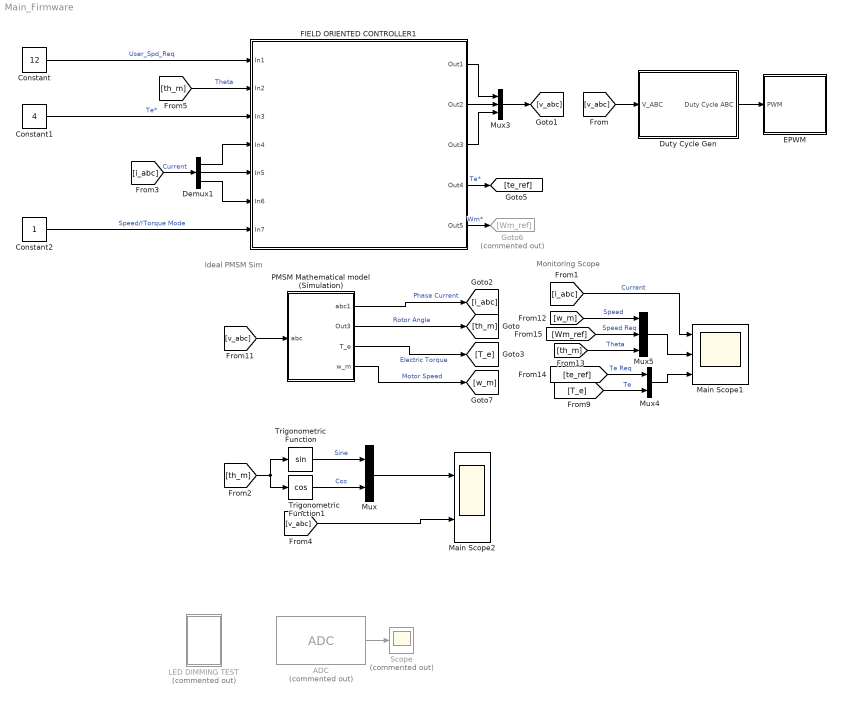
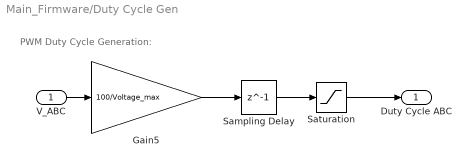
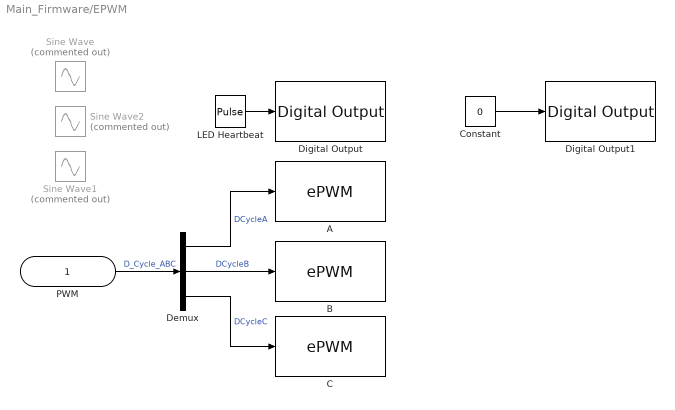
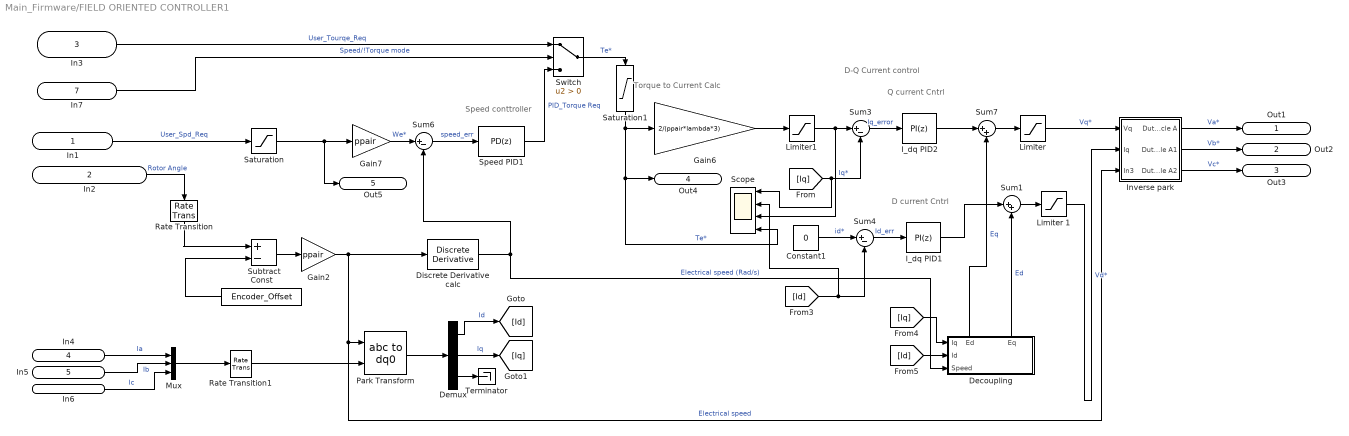
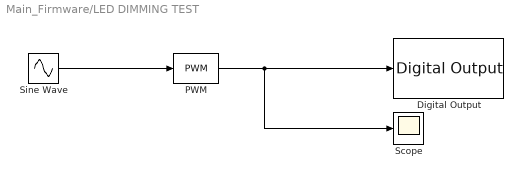
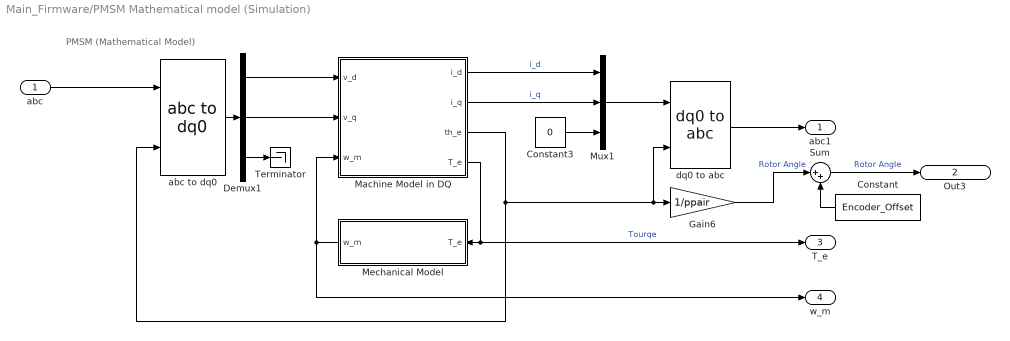
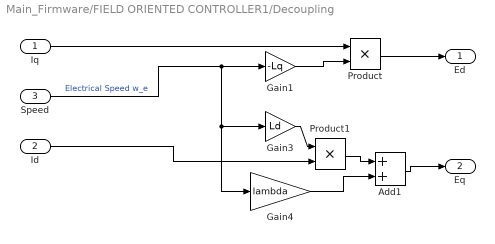
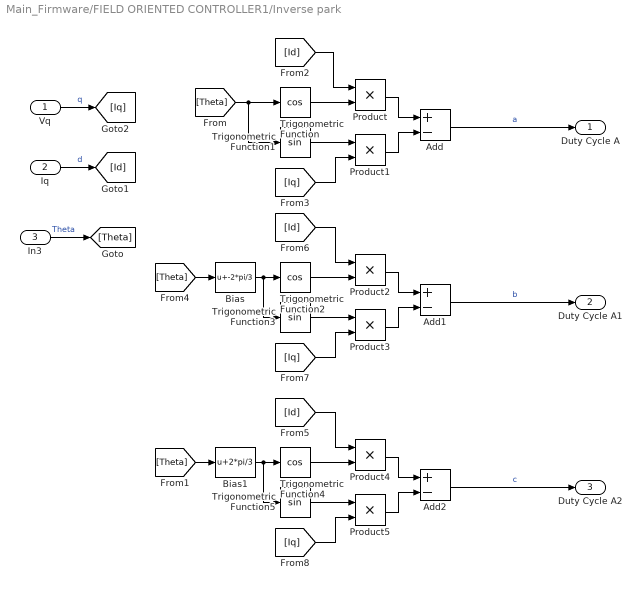
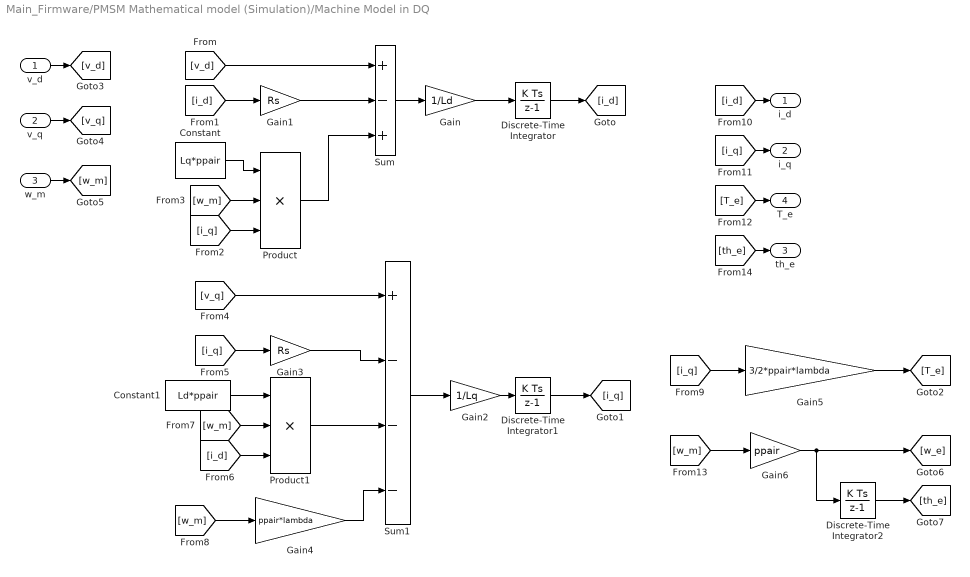
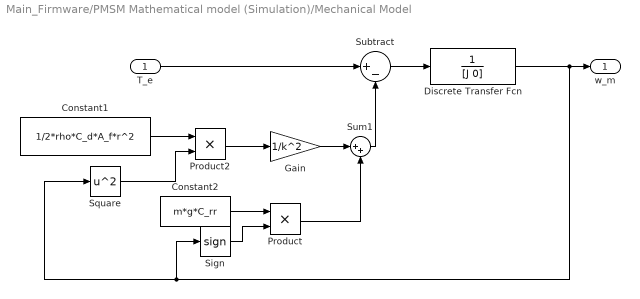
/*
 * Sponsored License - for use in support of a program or activity
 * sponsored by MathWorks.  Not for government, commercial or other
 * non-sponsored organizational use.
 *
 * File: Main_Firmware.c
 *
 * Code generated for Simulink model 'Main_Firmware'.
 *
 * Model version                  : 2.8
 * Simulink Coder version         : 24.2 (R2024b) 21-Jun-2024
 * C/C++ source code generated on : Mon May  5 13:40:06 2025
 *
 * Target selection: ert.tlc
 * Embedded hardware selection: Texas Instruments->C2000
 * Code generation objectives: Unspecified
 * Validation result: Not run
 */

#include "Main_Firmware.h"
#include "rtwtypes.h"
#include "Main_Firmware_private.h"
#include <math.h>
#include "rt_nonfinite.h"
#include <string.h>

/* Block signals (default storage) */
B_Main_Firmware_T Main_Firmware_B;

/* Block states (default storage) */
DW_Main_Firmware_T Main_Firmware_DW;

/* Real-time model */
static RT_MODEL_Main_Firmware_T Main_Firmware_M_;
RT_MODEL_Main_Firmware_T *const Main_Firmware_M = &Main_Firmware_M_;

/*
 * System initialize for enable system:
 *    '<S116>/Subsystem - pi//2 delay'
 *    '<S178>/Subsystem - pi//2 delay'
 */
void Main_Fir_Subsystempi2delay_Init(real_T *rty_dq, real_T *rty_dq_f,
  P_Subsystempi2delay_Main_Firm_T *localP)
{
  /* SystemInitialize for Outport: '<S120>/dq' */
  *rty_dq = localP->dq_Y0[0];
  *rty_dq_f = localP->dq_Y0[1];
}

/*
 * Output and update for enable system:
 *    '<S116>/Subsystem - pi//2 delay'
 *    '<S178>/Subsystem - pi//2 delay'
 */
void Main_Firmware_Subsystempi2delay(uint16_T rtu_Enable, const real_T
  rtu_alpha_beta[2], real_T rtu_wt, real_T *rty_dq, real_T *rty_dq_f,
  DW_Subsystempi2delay_Main_Fir_T *localDW)
{
  real_T tmp;
  real_T tmp_0;

  /* Outputs for Enabled SubSystem: '<S116>/Subsystem - pi//2 delay' incorporates:
   *  EnablePort: '<S120>/Enable'
   */
  if (rtu_Enable > 0U) {
    /* Fcn: '<S120>/Fcn' incorporates:
     *  Fcn: '<S120>/Fcn1'
     */
    tmp = cos(rtu_wt);
    tmp_0 = sin(rtu_wt);
    *rty_dq = rtu_alpha_beta[0] * tmp_0 - rtu_alpha_beta[1] * tmp;

    /* Fcn: '<S120>/Fcn1' */
    *rty_dq_f = rtu_alpha_beta[0] * tmp + rtu_alpha_beta[1] * tmp_0;
    srUpdateBC(localDW->Subsystempi2delay_SubsysRanBC);
  }

  /* End of Outputs for SubSystem: '<S116>/Subsystem - pi//2 delay' */
}

/*
 * System initialize for enable system:
 *    '<S116>/Subsystem1'
 *    '<S178>/Subsystem1'
 */
void Main_Firmware_Subsystem1_Init(real_T *rty_dq, real_T *rty_dq_e,
  P_Subsystem1_Main_Firmware_T *localP)
{
  /* SystemInitialize for Outport: '<S121>/dq' */
  *rty_dq = localP->dq_Y0[0];
  *rty_dq_e = localP->dq_Y0[1];
}

/*
 * Output and update for enable system:
 *    '<S116>/Subsystem1'
 *    '<S178>/Subsystem1'
 */
void Main_Firmware_Subsystem1(uint16_T rtu_Enable, const real_T rtu_alpha_beta[2],
  real_T rtu_wt, real_T *rty_dq, real_T *rty_dq_e, DW_Subsystem1_Main_Firmware_T
  *localDW)
{
  real_T tmp;
  real_T tmp_0;

  /* Outputs for Enabled SubSystem: '<S116>/Subsystem1' incorporates:
   *  EnablePort: '<S121>/Enable'
   */
  if (rtu_Enable > 0U) {
    /* Fcn: '<S121>/Fcn' incorporates:
     *  Fcn: '<S121>/Fcn1'
     */
    tmp = sin(rtu_wt);
    tmp_0 = cos(rtu_wt);
    *rty_dq = rtu_alpha_beta[0] * tmp_0 + rtu_alpha_beta[1] * tmp;

    /* Fcn: '<S121>/Fcn1' */
    *rty_dq_e = -rtu_alpha_beta[0] * tmp + rtu_alpha_beta[1] * tmp_0;
    srUpdateBC(localDW->Subsystem1_SubsysRanBC);
  }

  /* End of Outputs for SubSystem: '<S116>/Subsystem1' */
}

/* Model step function */
void Main_Firmware_step(void)
{
  real_T rtb_Gain3[3];
  real_T Iq_tmp;
  real_T rtb_Electricalspeed;
  real_T rtb_Filter;
  real_T rtb_FilterCoefficient;
  real_T rtb_Gain4_f;
  real_T rtb_Iq_error;
  real_T rtb_Product1_b;
  real_T rtb_Sum1_m;
  real_T rtb_TSamp;
  int16_T rtb_Compare;

  /* Reset subsysRan breadcrumbs */
  srClearBC(Main_Firmware_DW.Subsystempi2delay.Subsystempi2delay_SubsysRanBC);

  /* Reset subsysRan breadcrumbs */
  srClearBC(Main_Firmware_DW.Subsystem1.Subsystem1_SubsysRanBC);

  /* Reset subsysRan breadcrumbs */
  srClearBC(Main_Firmware_DW.Subsystempi2delay_SubsysRanBC);

  /* Reset subsysRan breadcrumbs */
  srClearBC(Main_Firmware_DW.Subsystem1_SubsysRanBC);

  /* Saturate: '<S1>/Saturation' incorporates:
   *  Delay: '<S1>/Sampling Delay'
   */
  if (Main_Firmware_DW.SamplingDelay_DSTATE[0] >
      Main_Firmware_P.Saturation_UpperSat) {
    rtb_Gain3[0] = Main_Firmware_P.Saturation_UpperSat;
  } else if (Main_Firmware_DW.SamplingDelay_DSTATE[0] <
             Main_Firmware_P.Saturation_LowerSat) {
    rtb_Gain3[0] = Main_Firmware_P.Saturation_LowerSat;
  } else {
    rtb_Gain3[0] = Main_Firmware_DW.SamplingDelay_DSTATE[0];
  }

  if (Main_Firmware_DW.SamplingDelay_DSTATE[1] >
      Main_Firmware_P.Saturation_UpperSat) {
    rtb_Gain3[1] = Main_Firmware_P.Saturation_UpperSat;
  } else if (Main_Firmware_DW.SamplingDelay_DSTATE[1] <
             Main_Firmware_P.Saturation_LowerSat) {
    rtb_Gain3[1] = Main_Firmware_P.Saturation_LowerSat;
  } else {
    rtb_Gain3[1] = Main_Firmware_DW.SamplingDelay_DSTATE[1];
  }

  if (Main_Firmware_DW.SamplingDelay_DSTATE[2] >
      Main_Firmware_P.Saturation_UpperSat) {
    rtb_Gain3[2] = Main_Firmware_P.Saturation_UpperSat;
  } else if (Main_Firmware_DW.SamplingDelay_DSTATE[2] <
             Main_Firmware_P.Saturation_LowerSat) {
    rtb_Gain3[2] = Main_Firmware_P.Saturation_LowerSat;
  } else {
    rtb_Gain3[2] = Main_Firmware_DW.SamplingDelay_DSTATE[2];
  }

  /* End of Saturate: '<S1>/Saturation' */

  /* S-Function (c2802xpwm): '<S2>/A' */
  uint16_T tbprdValue1Outputs = (EPwm1Regs.TBPRD + 1);

  /*-- Update CMPA value for ePWM1 --*/
  {
    EPwm1Regs.CMPA.bit.CMPA = (uint16_T)((uint32_T)(EPwm1Regs.TBPRD + 1) *
      rtb_Gain3[0] * 0.01);
  }

  /* S-Function (c2802xpwm): '<S2>/B' */
  uint16_T tbprdValue4Outputs = (EPwm4Regs.TBPRD + 1);

  /*-- Update CMPA value for ePWM4 --*/
  {
    EPwm4Regs.CMPA.bit.CMPA = (uint16_T)((uint32_T)(EPwm4Regs.TBPRD + 1) *
      rtb_Gain3[1] * 0.01);
  }

  /* S-Function (c2802xpwm): '<S2>/C' */
  uint16_T tbprdValue2Outputs = (EPwm2Regs.TBPRD + 1);

  /*-- Update CMPA value for ePWM2 --*/
  {
    EPwm2Regs.CMPA.bit.CMPA = (uint16_T)((uint32_T)(EPwm2Regs.TBPRD + 1) *
      rtb_Gain3[2] * 0.01);
  }

  /* S-Function (c280xgpio_do): '<S2>/Digital Output1' incorporates:
   *  Constant: '<S2>/Constant'
   */
  {
    if (Main_Firmware_P.Constant_Value) {
      GpioDataRegs.GPASET.bit.GPIO31 = 1U;
    } else {
      GpioDataRegs.GPACLEAR.bit.GPIO31 = 1U;
    }
  }

  /* Sum: '<S175>/Subtract' incorporates:
   *  DiscretePulseGenerator: '<S2>/LED Heartbeat'
   */
  Main_Firmware_B.Subtract = (Main_Firmware_DW.clockTickCounter <
    Main_Firmware_P.LEDHeartbeat_Duty) && (Main_Firmware_DW.clockTickCounter >=
    0L) ? Main_Firmware_P.LEDHeartbeat_Amp : 0.0;

  /* DiscretePulseGenerator: '<S2>/LED Heartbeat' */
  if (Main_Firmware_DW.clockTickCounter >= Main_Firmware_P.LEDHeartbeat_Period -
      1.0) {
    Main_Firmware_DW.clockTickCounter = 0L;
  } else {
    Main_Firmware_DW.clockTickCounter++;
  }

  /* S-Function (c280xgpio_do): '<S2>/Digital Output' */
  {
    if (Main_Firmware_B.Subtract) {
      GpioDataRegs.GPASET.bit.GPIO23 = 1U;
    } else {
      GpioDataRegs.GPACLEAR.bit.GPIO23 = 1U;
    }
  }

  /* DiscreteTransferFcn: '<S175>/Discrete Transfer Fcn' */
  Main_Firmware_B.DiscreteTransferFcn =
    Main_Firmware_P.DiscreteTransferFcn_NumCoef *
    Main_Firmware_DW.DiscreteTransferFcn_states;

  /* Sum: '<S4>/Sum' incorporates:
   *  Constant: '<S4>/Constant'
   *  DiscreteIntegrator: '<S174>/Discrete-Time Integrator2'
   *  Gain: '<S4>/Gain6'
   */
  Main_Firmware_B.RotorAngle = 1.0 / Main_Firmware_P.ppair *
    Main_Firmware_DW.DiscreteTimeIntegrator2_DSTATE +
    Main_Firmware_P.Encoder_Offset;

  /* SignalConversion generated from: '<Root>/Mux5' */
  Main_Firmware_B.TmpSignalConversionAtTAQSigLogg[0] =
    Main_Firmware_B.DiscreteTransferFcn;
  Main_Firmware_B.TmpSignalConversionAtTAQSigLogg[1] = 0.0;
  Main_Firmware_B.TmpSignalConversionAtTAQSigLogg[2] =
    Main_Firmware_B.RotorAngle;

  /* RelationalOperator: '<S186>/Compare' incorporates:
   *  Constant: '<S185>/Constant'
   *  Constant: '<S186>/Constant'
   */
  rtb_Compare = (Main_Firmware_P.dq0toAlphaBetaZero_Alignment ==
                 Main_Firmware_P.CompareToConstant_const);

  /* Outputs for Enabled SubSystem: '<S185>/Subsystem1' incorporates:
   *  EnablePort: '<S189>/Enable'
   */
  /* RelationalOperator: '<S186>/Compare' */
  if (rtb_Compare > 0) {
    /* Fcn: '<S189>/Fcn' incorporates:
     *  DiscreteIntegrator: '<S174>/Discrete-Time Integrator2'
     *  Fcn: '<S189>/Fcn1'
     */
    rtb_TSamp = sin(Main_Firmware_DW.DiscreteTimeIntegrator2_DSTATE);
    rtb_FilterCoefficient = cos(Main_Firmware_DW.DiscreteTimeIntegrator2_DSTATE);

    /* Fcn: '<S189>/Fcn' incorporates:
     *  DiscreteIntegrator: '<S174>/Discrete-Time Integrator'
     *  DiscreteIntegrator: '<S174>/Discrete-Time Integrator1'
     */
    Main_Firmware_B.Fcn = Main_Firmware_DW.DiscreteTimeIntegrator_DSTATE *
      rtb_FilterCoefficient - Main_Firmware_DW.DiscreteTimeIntegrator1_DSTATE *
      rtb_TSamp;

    /* Fcn: '<S189>/Fcn1' incorporates:
     *  DiscreteIntegrator: '<S174>/Discrete-Time Integrator'
     *  DiscreteIntegrator: '<S174>/Discrete-Time Integrator1'
     */
    Main_Firmware_B.Fcn1 = Main_Firmware_DW.DiscreteTimeIntegrator_DSTATE *
      rtb_TSamp + Main_Firmware_DW.DiscreteTimeIntegrator1_DSTATE *
      rtb_FilterCoefficient;
    srUpdateBC(Main_Firmware_DW.Subsystem1_SubsysRanBC);
  }

  /* End of Outputs for SubSystem: '<S185>/Subsystem1' */

  /* Outputs for Enabled SubSystem: '<S185>/Subsystem - pi//2 delay' incorporates:
   *  EnablePort: '<S188>/Enable'
   */
  /* RelationalOperator: '<S187>/Compare' incorporates:
   *  Constant: '<S185>/Constant'
   *  Constant: '<S187>/Constant'
   */
  if (Main_Firmware_P.dq0toAlphaBetaZero_Alignment ==
      Main_Firmware_P.CompareToConstant1_const) {
    /* Fcn: '<S188>/Fcn' incorporates:
     *  DiscreteIntegrator: '<S174>/Discrete-Time Integrator2'
     *  Fcn: '<S188>/Fcn1'
     */
    rtb_TSamp = cos(Main_Firmware_DW.DiscreteTimeIntegrator2_DSTATE);

    /* Fcn: '<S188>/Fcn' incorporates:
     *  DiscreteIntegrator: '<S174>/Discrete-Time Integrator'
     *  DiscreteIntegrator: '<S174>/Discrete-Time Integrator1'
     *  DiscreteIntegrator: '<S174>/Discrete-Time Integrator2'
     */
    Main_Firmware_B.Fcn_l = Main_Firmware_DW.DiscreteTimeIntegrator_DSTATE * sin
      (Main_Firmware_DW.DiscreteTimeIntegrator2_DSTATE) +
      Main_Firmware_DW.DiscreteTimeIntegrator1_DSTATE * rtb_TSamp;

    /* Fcn: '<S188>/Fcn1' incorporates:
     *  DiscreteIntegrator: '<S174>/Discrete-Time Integrator'
     *  DiscreteIntegrator: '<S174>/Discrete-Time Integrator1'
     *  DiscreteIntegrator: '<S174>/Discrete-Time Integrator2'
     */
    Main_Firmware_B.Fcn1_a = -Main_Firmware_DW.DiscreteTimeIntegrator_DSTATE *
      rtb_TSamp + Main_Firmware_DW.DiscreteTimeIntegrator1_DSTATE * sin
      (Main_Firmware_DW.DiscreteTimeIntegrator2_DSTATE);
    srUpdateBC(Main_Firmware_DW.Subsystempi2delay_SubsysRanBC);
  }

  /* End of RelationalOperator: '<S187>/Compare' */
  /* End of Outputs for SubSystem: '<S185>/Subsystem - pi//2 delay' */

  /* Switch: '<S185>/Switch' incorporates:
   *  RelationalOperator: '<S186>/Compare'
   */
  if (rtb_Compare != 0) {
    /* SignalConversion generated from: '<S184>/Gain3' */
    rtb_Gain3[0] = Main_Firmware_B.Fcn;
    rtb_Gain3[1] = Main_Firmware_B.Fcn1;
  } else {
    /* SignalConversion generated from: '<S184>/Gain3' */
    rtb_Gain3[0] = Main_Firmware_B.Fcn_l;
    rtb_Gain3[1] = Main_Firmware_B.Fcn1_a;
  }

  /* End of Switch: '<S185>/Switch' */

  /* SignalConversion generated from: '<S184>/Gain3' incorporates:
   *  Constant: '<S4>/Constant3'
   */
  rtb_Gain3[2] = Main_Firmware_P.Constant3_Value;

  /* Gain: '<S184>/Gain3' */
  rtb_TSamp = rtb_Gain3[1];
  rtb_FilterCoefficient = rtb_Gain3[0];
  rtb_Filter = rtb_Gain3[2];
  for (rtb_Compare = 0; rtb_Compare < 3; rtb_Compare++) {
    /* Gain: '<S184>/Gain3' */
    Main_Firmware_B.Gain3[rtb_Compare] = (Main_Firmware_P.Gain3_Gain[rtb_Compare
      + 3] * rtb_TSamp + Main_Firmware_P.Gain3_Gain[rtb_Compare] *
      rtb_FilterCoefficient) + Main_Firmware_P.Gain3_Gain[rtb_Compare + 6] *
      rtb_Filter;
  }

  /* Gain: '<S3>/Gain2' incorporates:
   *  Constant: '<S3>/Const'
   *  Sum: '<S3>/Subtract'
   */
  rtb_Electricalspeed = (Main_Firmware_B.RotorAngle -
    Main_Firmware_P.Encoder_Offset) * Main_Firmware_P.ppair;

  /* SampleTimeMath: '<S6>/TSamp'
   *
   * About '<S6>/TSamp':
   *  y = u * K where K = 1 / ( w * Ts )
   *   */
  rtb_TSamp = rtb_Electricalspeed * Main_Firmware_P.TSamp_WtEt;

  /* Sum: '<S6>/Diff' incorporates:
   *  UnitDelay: '<S6>/UD'
   *
   * Block description for '<S6>/Diff':
   *
   *  Add in CPU
   *
   * Block description for '<S6>/UD':
   *
   *  Store in Global RAM
   */
  rtb_Gain4_f = rtb_TSamp - Main_Firmware_DW.UD_DSTATE;

  /* Saturate: '<S3>/Saturation' incorporates:
   *  Constant: '<Root>/Constant'
   */
  if (Main_Firmware_P.Constant_Value_d > Main_Firmware_P.speed_max) {
    rtb_Product1_b = Main_Firmware_P.speed_max;
  } else if (Main_Firmware_P.Constant_Value_d < -Main_Firmware_P.speed_max) {
    rtb_Product1_b = -Main_Firmware_P.speed_max;
  } else {
    rtb_Product1_b = Main_Firmware_P.Constant_Value_d;
  }

  /* Sum: '<S3>/Sum6' incorporates:
   *  Gain: '<S3>/Gain7'
   *  Saturate: '<S3>/Saturation'
   */
  rtb_Filter = Main_Firmware_P.ppair * rtb_Product1_b - rtb_Gain4_f;

  /* Gain: '<S159>/Filter Coefficient' incorporates:
   *  DiscreteIntegrator: '<S151>/Filter'
   *  Gain: '<S149>/Derivative Gain'
   *  Sum: '<S151>/SumD'
   */
  rtb_FilterCoefficient = (Main_Firmware_P.SpeedPID1_D * rtb_Filter -
    Main_Firmware_DW.Filter_DSTATE) * Main_Firmware_P.SpeedPID1_N;

  /* Switch: '<S3>/Switch' incorporates:
   *  Constant: '<Root>/Constant2'
   */
  if (Main_Firmware_P.Constant2_Value > Main_Firmware_P.Switch_Threshold) {
    /* Sum: '<S165>/Sum' incorporates:
     *  Constant: '<Root>/Constant1'
     */
    Main_Firmware_B.Te = Main_Firmware_P.Constant1_Value;
  } else {
    /* Sum: '<S165>/Sum' incorporates:
     *  Gain: '<S161>/Proportional Gain'
     */
    Main_Firmware_B.Te = Main_Firmware_P.SpeedPID1_P * rtb_Filter +
      rtb_FilterCoefficient;

    /* Saturate: '<S163>/Saturation' */
    if (Main_Firmware_B.Te > Main_Firmware_P.Torque_max) {
      /* Sum: '<S165>/Sum' */
      Main_Firmware_B.Te = Main_Firmware_P.Torque_max;
    } else if (Main_Firmware_B.Te < -Main_Firmware_P.Torque_max) {
      /* Sum: '<S165>/Sum' */
      Main_Firmware_B.Te = -Main_Firmware_P.Torque_max;
    }

    /* End of Saturate: '<S163>/Saturation' */
  }

  /* End of Switch: '<S3>/Switch' */

  /* Saturate: '<S3>/Saturation1' */
  if (Main_Firmware_B.Te > Main_Firmware_P.Torque_max) {
    /* Sum: '<S165>/Sum' incorporates:
     *  Saturate: '<S3>/Saturation1'
     */
    Main_Firmware_B.Te = Main_Firmware_P.Torque_max;
  } else if (Main_Firmware_B.Te < -Main_Firmware_P.Torque_max) {
    /* Sum: '<S165>/Sum' incorporates:
     *  Saturate: '<S3>/Saturation1'
     */
    Main_Firmware_B.Te = -Main_Firmware_P.Torque_max;
  }

  /* End of Saturate: '<S3>/Saturation1' */

  /* Gain: '<S174>/Gain5' incorporates:
   *  DiscreteIntegrator: '<S174>/Discrete-Time Integrator1'
   */
  Main_Firmware_B.Gain5 = 1.5 * Main_Firmware_P.ppair * Main_Firmware_P.lambda *
    Main_Firmware_DW.DiscreteTimeIntegrator1_DSTATE;

  /* SignalConversion generated from: '<Root>/Mux4' */
  Main_Firmware_B.TmpSignalConversionAtTAQSigLo_m[0] = Main_Firmware_B.Te;
  Main_Firmware_B.TmpSignalConversionAtTAQSigLo_m[1] = Main_Firmware_B.Gain5;

  /* Gain: '<S117>/Gain3' */
  rtb_Filter = Main_Firmware_B.Gain3[1];
  rtb_Iq_error = Main_Firmware_B.Gain3[0];
  rtb_Sum1_m = Main_Firmware_B.Gain3[2];
  for (rtb_Compare = 0; rtb_Compare < 3; rtb_Compare++) {
    /* Gain: '<S117>/Gain1' incorporates:
     *  Gain: '<S117>/Gain3'
     */
    Main_Firmware_B.Gain1[rtb_Compare] =
      ((Main_Firmware_P.Gain3_Gain_k[rtb_Compare + 3] * rtb_Filter +
        Main_Firmware_P.Gain3_Gain_k[rtb_Compare] * rtb_Iq_error) +
       Main_Firmware_P.Gain3_Gain_k[rtb_Compare + 6] * rtb_Sum1_m) *
      Main_Firmware_P.Gain1_Gain;
  }

  /* End of Gain: '<S117>/Gain3' */

  /* RelationalOperator: '<S118>/Compare' incorporates:
   *  Constant: '<S116>/Constant'
   *  Constant: '<S118>/Constant'
   */
  rtb_Compare = (Main_Firmware_P.AlphaBetaZerotodq0_Alignment ==
                 Main_Firmware_P.CompareToConstant_const_o);

  /* Outputs for Enabled SubSystem: '<S116>/Subsystem1' */
  /* Gain: '<S117>/Gain1' */
  Main_Firmware_Subsystem1((uint16_T)rtb_Compare, &Main_Firmware_B.Gain1[0],
    rtb_Electricalspeed, &Main_Firmware_B.Fcn_k, &Main_Firmware_B.Fcn1_n,
    &Main_Firmware_DW.Subsystem1);

  /* End of Outputs for SubSystem: '<S116>/Subsystem1' */

  /* Outputs for Enabled SubSystem: '<S116>/Subsystem - pi//2 delay' */
  /* RelationalOperator: '<S119>/Compare' incorporates:
   *  Constant: '<S116>/Constant'
   *  Constant: '<S119>/Constant'
   *  Gain: '<S117>/Gain1'
   */
  Main_Firmware_Subsystempi2delay((uint16_T)
    (Main_Firmware_P.AlphaBetaZerotodq0_Alignment ==
     Main_Firmware_P.CompareToConstant1_const_k), &Main_Firmware_B.Gain1[0],
    rtb_Electricalspeed, &Main_Firmware_B.Fcn_j, &Main_Firmware_B.Fcn1_e,
    &Main_Firmware_DW.Subsystempi2delay);

  /* End of Outputs for SubSystem: '<S116>/Subsystem - pi//2 delay' */

  /* Switch: '<S116>/Switch' incorporates:
   *  RelationalOperator: '<S118>/Compare'
   */
  if (rtb_Compare != 0) {
    /* Switch: '<S116>/Switch' */
    Main_Firmware_B.Switch[0] = Main_Firmware_B.Fcn_k;
    Main_Firmware_B.Switch[1] = Main_Firmware_B.Fcn1_n;
  } else {
    /* Switch: '<S116>/Switch' */
    Main_Firmware_B.Switch[0] = Main_Firmware_B.Fcn_j;
    Main_Firmware_B.Switch[1] = Main_Firmware_B.Fcn1_e;
  }

  /* End of Switch: '<S116>/Switch' */

  /* SignalConversion generated from: '<S3>/Park Transform' */
  Main_Firmware_B.TmpSignalConversionAtTAQSigLo_j[0] = Main_Firmware_B.Switch[0];
  Main_Firmware_B.TmpSignalConversionAtTAQSigLo_j[1] = Main_Firmware_B.Switch[1];
  Main_Firmware_B.TmpSignalConversionAtTAQSigLo_j[2] = Main_Firmware_B.Gain1[2];

  /* Sum: '<S3>/Sum4' incorporates:
   *  Constant: '<S3>/Constant1'
   */
  rtb_Filter = Main_Firmware_P.Constant1_Value_n - Main_Firmware_B.Switch[0];

  /* Sum: '<S55>/Sum' incorporates:
   *  DiscreteIntegrator: '<S46>/Integrator'
   *  Gain: '<S51>/Proportional Gain'
   */
  rtb_Sum1_m = Main_Firmware_P.I_dqPID1_P * rtb_Filter +
    Main_Firmware_DW.Integrator_DSTATE;

  /* Saturate: '<S53>/Saturation' */
  if (rtb_Sum1_m > Main_Firmware_P.Voltage_max) {
    rtb_Sum1_m = Main_Firmware_P.Voltage_max;
  } else if (rtb_Sum1_m < -Main_Firmware_P.Voltage_max) {
    rtb_Sum1_m = -Main_Firmware_P.Voltage_max;
  }

  /* Sum: '<S3>/Sum1' incorporates:
   *  Gain: '<S5>/Gain3'
   *  Gain: '<S5>/Gain4'
   *  Product: '<S5>/Product1'
   *  Saturate: '<S53>/Saturation'
   *  Sum: '<S5>/Add1'
   */
  rtb_Product1_b = (Main_Firmware_P.Ld * rtb_Gain4_f * Main_Firmware_B.Switch[0]
                    + Main_Firmware_P.lambda * rtb_Gain4_f) + rtb_Sum1_m;

  /* Saturate: '<S3>/Limiter 1' */
  if (rtb_Product1_b > Main_Firmware_P.Voltage_max) {
    rtb_Product1_b = Main_Firmware_P.Voltage_max;
  } else if (rtb_Product1_b < Main_Firmware_P.Limiter1_LowerSat) {
    rtb_Product1_b = Main_Firmware_P.Limiter1_LowerSat;
  }

  /* End of Saturate: '<S3>/Limiter 1' */

  /* Gain: '<S3>/Gain6' incorporates:
   *  Gain: '<S174>/Gain4'
   */
  Iq_tmp = Main_Firmware_P.ppair * Main_Firmware_P.lambda;
  Main_Firmware_B.Iq = 2.0 / (Iq_tmp * 3.0) * Main_Firmware_B.Te;

  /* Saturate: '<S3>/Limiter1' */
  if (Main_Firmware_B.Iq > Main_Firmware_P.Current_max) {
    /* Gain: '<S3>/Gain6' incorporates:
     *  Saturate: '<S3>/Limiter1'
     */
    Main_Firmware_B.Iq = Main_Firmware_P.Current_max;
  } else if (Main_Firmware_B.Iq < -Main_Firmware_P.Current_max) {
    /* Gain: '<S3>/Gain6' incorporates:
     *  Saturate: '<S3>/Limiter1'
     */
    Main_Firmware_B.Iq = -Main_Firmware_P.Current_max;
  }

  /* End of Saturate: '<S3>/Limiter1' */

  /* Sum: '<S3>/Sum3' */
  rtb_Iq_error = Main_Firmware_B.Iq - Main_Firmware_B.Switch[1];

  /* Sum: '<S107>/Sum' incorporates:
   *  DiscreteIntegrator: '<S98>/Integrator'
   *  Gain: '<S103>/Proportional Gain'
   */
  rtb_Sum1_m = Main_Firmware_P.I_dqPID2_P * rtb_Iq_error +
    Main_Firmware_DW.Integrator_DSTATE_o;

  /* Saturate: '<S105>/Saturation' */
  if (rtb_Sum1_m > Main_Firmware_P.Voltage_max) {
    rtb_Sum1_m = Main_Firmware_P.Voltage_max;
  } else if (rtb_Sum1_m < -Main_Firmware_P.Voltage_max) {
    rtb_Sum1_m = -Main_Firmware_P.Voltage_max;
  }

  /* Sum: '<S3>/Sum7' incorporates:
   *  Gain: '<S5>/Gain1'
   *  Product: '<S5>/Product'
   *  Saturate: '<S105>/Saturation'
   */
  rtb_Sum1_m += -Main_Firmware_P.Lq * rtb_Gain4_f * Main_Firmware_B.Switch[1];

  /* Saturate: '<S3>/Limiter' */
  if (rtb_Sum1_m > Main_Firmware_P.Voltage_max) {
    rtb_Sum1_m = Main_Firmware_P.Voltage_max;
  } else if (rtb_Sum1_m < Main_Firmware_P.Limiter_LowerSat) {
    rtb_Sum1_m = Main_Firmware_P.Limiter_LowerSat;
  }

  /* End of Saturate: '<S3>/Limiter' */

  /* Sum: '<S9>/Add' incorporates:
   *  Product: '<S9>/Product'
   *  Product: '<S9>/Product1'
   *  Trigonometry: '<S9>/Trigonometric Function'
   *  Trigonometry: '<S9>/Trigonometric Function1'
   */
  Main_Firmware_B.a = rtb_Product1_b * cos(rtb_Electricalspeed) - sin
    (rtb_Electricalspeed) * rtb_Sum1_m;

  /* Bias: '<S9>/Bias' */
  rtb_Gain4_f = rtb_Electricalspeed + Main_Firmware_P.Bias_Bias;

  /* Sum: '<S9>/Add1' incorporates:
   *  Product: '<S9>/Product2'
   *  Product: '<S9>/Product3'
   *  Trigonometry: '<S9>/Trigonometric Function2'
   *  Trigonometry: '<S9>/Trigonometric Function3'
   */
  Main_Firmware_B.b = rtb_Product1_b * cos(rtb_Gain4_f) - sin(rtb_Gain4_f) *
    rtb_Sum1_m;

  /* Bias: '<S9>/Bias1' */
  rtb_Gain4_f = rtb_Electricalspeed + Main_Firmware_P.Bias1_Bias;

  /* Sum: '<S9>/Add2' incorporates:
   *  Product: '<S9>/Product4'
   *  Product: '<S9>/Product5'
   *  Trigonometry: '<S9>/Trigonometric Function4'
   *  Trigonometry: '<S9>/Trigonometric Function5'
   */
  Main_Firmware_B.c = rtb_Product1_b * cos(rtb_Gain4_f) - sin(rtb_Gain4_f) *
    rtb_Sum1_m;

  /* SignalConversion generated from: '<S179>/Gain3' */
  Main_Firmware_B.TmpSignalConversionAtGain3Inpor[0] = Main_Firmware_B.a;
  Main_Firmware_B.TmpSignalConversionAtGain3Inpor[1] = Main_Firmware_B.b;
  Main_Firmware_B.TmpSignalConversionAtGain3Inpor[2] = Main_Firmware_B.c;

  /* Trigonometry: '<Root>/Trigonometric Function' */
  Main_Firmware_B.Sine = sin(Main_Firmware_B.RotorAngle);

  /* Trigonometry: '<Root>/Trigonometric Function1' */
  Main_Firmware_B.Cos = cos(Main_Firmware_B.RotorAngle);

  /* SignalConversion generated from: '<Root>/Mux' */
  Main_Firmware_B.TmpSignalConversionAtTAQSigLo_i[0] = Main_Firmware_B.Sine;
  Main_Firmware_B.TmpSignalConversionAtTAQSigLo_i[1] = Main_Firmware_B.Cos;

  /* Gain: '<S1>/Gain5' incorporates:
   *  Delay: '<S1>/Sampling Delay'
   */
  rtb_Product1_b = 100.0 / Main_Firmware_P.Voltage_max;
  for (rtb_Compare = 0; rtb_Compare < 3; rtb_Compare++) {
    Main_Firmware_DW.SamplingDelay_DSTATE[rtb_Compare] = rtb_Product1_b *
      Main_Firmware_B.TmpSignalConversionAtGain3Inpor[rtb_Compare];

    /* Gain: '<S179>/Gain1' incorporates:
     *  Delay: '<S1>/Sampling Delay'
     *  Gain: '<S179>/Gain3'
     */
    rtb_Gain3[rtb_Compare] = ((Main_Firmware_P.Gain3_Gain_k3[rtb_Compare + 3] *
      Main_Firmware_B.TmpSignalConversionAtGain3Inpor[1] +
      Main_Firmware_P.Gain3_Gain_k3[rtb_Compare] *
      Main_Firmware_B.TmpSignalConversionAtGain3Inpor[0]) +
      Main_Firmware_P.Gain3_Gain_k3[rtb_Compare + 6] *
      Main_Firmware_B.TmpSignalConversionAtGain3Inpor[2]) *
      Main_Firmware_P.Gain1_Gain_i;
  }

  /* End of Gain: '<S1>/Gain5' */
  /* RelationalOperator: '<S180>/Compare' incorporates:
   *  Constant: '<S178>/Constant'
   *  Constant: '<S180>/Constant'
   */
  rtb_Compare = (Main_Firmware_P.AlphaBetaZerotodq0_Alignment_e ==
                 Main_Firmware_P.CompareToConstant_const_n);

  /* Outputs for Enabled SubSystem: '<S178>/Subsystem1' */
  /* DiscreteIntegrator: '<S174>/Discrete-Time Integrator2' */
  Main_Firmware_Subsystem1((uint16_T)rtb_Compare, &rtb_Gain3[0],
    Main_Firmware_DW.DiscreteTimeIntegrator2_DSTATE, &Main_Firmware_B.Fcn_f,
    &Main_Firmware_B.Fcn1_j, &Main_Firmware_DW.Subsystem1_k);

  /* End of Outputs for SubSystem: '<S178>/Subsystem1' */

  /* Outputs for Enabled SubSystem: '<S178>/Subsystem - pi//2 delay' */
  /* RelationalOperator: '<S181>/Compare' incorporates:
   *  Constant: '<S178>/Constant'
   *  Constant: '<S181>/Constant'
   *  DiscreteIntegrator: '<S174>/Discrete-Time Integrator2'
   */
  Main_Firmware_Subsystempi2delay((uint16_T)
    (Main_Firmware_P.AlphaBetaZerotodq0_Alignment_e ==
     Main_Firmware_P.CompareToConstant1_const_n), &rtb_Gain3[0],
    Main_Firmware_DW.DiscreteTimeIntegrator2_DSTATE, &Main_Firmware_B.Fcn_m,
    &Main_Firmware_B.Fcn1_i, &Main_Firmware_DW.Subsystempi2delay_o);

  /* End of Outputs for SubSystem: '<S178>/Subsystem - pi//2 delay' */

  /* Switch: '<S178>/Switch' incorporates:
   *  RelationalOperator: '<S180>/Compare'
   */
  if (rtb_Compare != 0) {
    rtb_Electricalspeed = Main_Firmware_B.Fcn_f;
    rtb_Gain4_f = Main_Firmware_B.Fcn1_j;
  } else {
    rtb_Electricalspeed = Main_Firmware_B.Fcn_m;
    rtb_Gain4_f = Main_Firmware_B.Fcn1_i;
  }

  /* End of Switch: '<S178>/Switch' */
  /* Sum: '<S174>/Sum1' incorporates:
   *  Constant: '<S174>/Constant1'
   *  DiscreteIntegrator: '<S174>/Discrete-Time Integrator'
   *  DiscreteIntegrator: '<S174>/Discrete-Time Integrator1'
   *  Gain: '<S174>/Gain3'
   *  Gain: '<S174>/Gain4'
   *  Product: '<S174>/Product1'
   */
  rtb_Sum1_m = ((rtb_Gain4_f - Main_Firmware_P.Rs *
                 Main_Firmware_DW.DiscreteTimeIntegrator1_DSTATE) -
                Main_Firmware_P.Ld * Main_Firmware_P.ppair *
                Main_Firmware_B.DiscreteTransferFcn *
                Main_Firmware_DW.DiscreteTimeIntegrator_DSTATE) - Iq_tmp *
    Main_Firmware_B.DiscreteTransferFcn;

  /* Signum: '<S175>/Sign' */
  if (rtIsNaN(Main_Firmware_B.DiscreteTransferFcn)) {
    rtb_Product1_b = (rtNaN);
  } else if (Main_Firmware_B.DiscreteTransferFcn < 0.0) {
    rtb_Product1_b = -1.0;
  } else {
    rtb_Product1_b = (Main_Firmware_B.DiscreteTransferFcn > 0.0);
  }

  /* Sum: '<S175>/Subtract' incorporates:
   *  Constant: '<S175>/Constant1'
   *  Constant: '<S175>/Constant2'
   *  Gain: '<S175>/Gain'
   *  Math: '<S175>/Square'
   *  Product: '<S175>/Product'
   *  Product: '<S175>/Product2'
   *  Signum: '<S175>/Sign'
   *  Sum: '<S175>/Sum1'
   */
  Main_Firmware_B.Subtract = Main_Firmware_B.Gain5 - (0.5 * Main_Firmware_P.rho *
    Main_Firmware_P.C_d * Main_Firmware_P.A_f * 0.04129024 *
    (Main_Firmware_B.DiscreteTransferFcn * Main_Firmware_B.DiscreteTransferFcn) *
    Main_Firmware_P.Gain_Gain + Main_Firmware_P.m * Main_Firmware_P.g *
    Main_Firmware_P.C_rr * rtb_Product1_b);

  /* Update for DiscreteTransferFcn: '<S175>/Discrete Transfer Fcn' */
  Main_Firmware_DW.DiscreteTransferFcn_states = (Main_Firmware_B.Subtract -
    Main_Firmware_P.DiscreteTransferFcn_DenCoef[1L] *
    Main_Firmware_DW.DiscreteTransferFcn_states) /
    Main_Firmware_P.DiscreteTransferFcn_DenCoef[0];

  /* Update for DiscreteIntegrator: '<S174>/Discrete-Time Integrator2' incorporates:
   *  Gain: '<S174>/Gain6'
   */
  Main_Firmware_DW.DiscreteTimeIntegrator2_DSTATE += Main_Firmware_P.ppair *
    Main_Firmware_B.DiscreteTransferFcn *
    Main_Firmware_P.DiscreteTimeIntegrator2_gainval;

  /* Update for DiscreteIntegrator: '<S174>/Discrete-Time Integrator' incorporates:
   *  Constant: '<S174>/Constant'
   *  DiscreteIntegrator: '<S174>/Discrete-Time Integrator1'
   *  Gain: '<S174>/Gain'
   *  Gain: '<S174>/Gain1'
   *  Product: '<S174>/Product'
   *  Sum: '<S174>/Sum'
   */
  Main_Firmware_DW.DiscreteTimeIntegrator_DSTATE += (Main_Firmware_P.Lq *
    Main_Firmware_P.ppair * Main_Firmware_B.DiscreteTransferFcn *
    Main_Firmware_DW.DiscreteTimeIntegrator1_DSTATE + (rtb_Electricalspeed -
    Main_Firmware_P.Rs * Main_Firmware_DW.DiscreteTimeIntegrator_DSTATE)) * (1.0
    / Main_Firmware_P.Ld) * Main_Firmware_P.DiscreteTimeIntegrator_gainval;

  /* Update for DiscreteIntegrator: '<S174>/Discrete-Time Integrator1' incorporates:
   *  Gain: '<S174>/Gain2'
   */
  Main_Firmware_DW.DiscreteTimeIntegrator1_DSTATE += 1.0 / Main_Firmware_P.Lq *
    rtb_Sum1_m * Main_Firmware_P.DiscreteTimeIntegrator1_gainval;

  /* Update for UnitDelay: '<S6>/UD'
   *
   * Block description for '<S6>/UD':
   *
   *  Store in Global RAM
   */
  Main_Firmware_DW.UD_DSTATE = rtb_TSamp;

  /* Update for DiscreteIntegrator: '<S151>/Filter' */
  Main_Firmware_DW.Filter_DSTATE += Main_Firmware_P.Filter_gainval *
    rtb_FilterCoefficient;

  /* Update for DiscreteIntegrator: '<S46>/Integrator' incorporates:
   *  Gain: '<S43>/Integral Gain'
   */
  Main_Firmware_DW.Integrator_DSTATE += Main_Firmware_P.I_dqPID1_I * rtb_Filter *
    Main_Firmware_P.Integrator_gainval;
  if (Main_Firmware_DW.Integrator_DSTATE > Main_Firmware_P.Voltage_max) {
    Main_Firmware_DW.Integrator_DSTATE = Main_Firmware_P.Voltage_max;
  } else if (Main_Firmware_DW.Integrator_DSTATE < -Main_Firmware_P.Voltage_max)
  {
    Main_Firmware_DW.Integrator_DSTATE = -Main_Firmware_P.Voltage_max;
  }

  /* End of Update for DiscreteIntegrator: '<S46>/Integrator' */

  /* Update for DiscreteIntegrator: '<S98>/Integrator' incorporates:
   *  Gain: '<S95>/Integral Gain'
   */
  Main_Firmware_DW.Integrator_DSTATE_o += Main_Firmware_P.I_dqPID2_I *
    rtb_Iq_error * Main_Firmware_P.Integrator_gainval_i;
  if (Main_Firmware_DW.Integrator_DSTATE_o > Main_Firmware_P.Voltage_max) {
    Main_Firmware_DW.Integrator_DSTATE_o = Main_Firmware_P.Voltage_max;
  } else if (Main_Firmware_DW.Integrator_DSTATE_o < -Main_Firmware_P.Voltage_max)
  {
    Main_Firmware_DW.Integrator_DSTATE_o = -Main_Firmware_P.Voltage_max;
  }

  /* End of Update for DiscreteIntegrator: '<S98>/Integrator' */

  /* Update absolute time for base rate */
  /* The "clockTick0" counts the number of times the code of this task has
   * been executed. The absolute time is the multiplication of "clockTick0"
   * and "Timing.stepSize0". Size of "clockTick0" ensures timer will not
   * overflow during the application lifespan selected.
   * Timer of this task consists of two 32 bit unsigned integers.
   * The two integers represent the low bits Timing.clockTick0 and the high bits
   * Timing.clockTickH0. When the low bit overflows to 0, the high bits increment.
   */
  if (!(++Main_Firmware_M->Timing.clockTick0)) {
    ++Main_Firmware_M->Timing.clockTickH0;
  }

  Main_Firmware_M->Timing.taskTime0 = Main_Firmware_M->Timing.clockTick0 *
    Main_Firmware_M->Timing.stepSize0 + Main_Firmware_M->Timing.clockTickH0 *
    Main_Firmware_M->Timing.stepSize0 * 4294967296.0;
}
